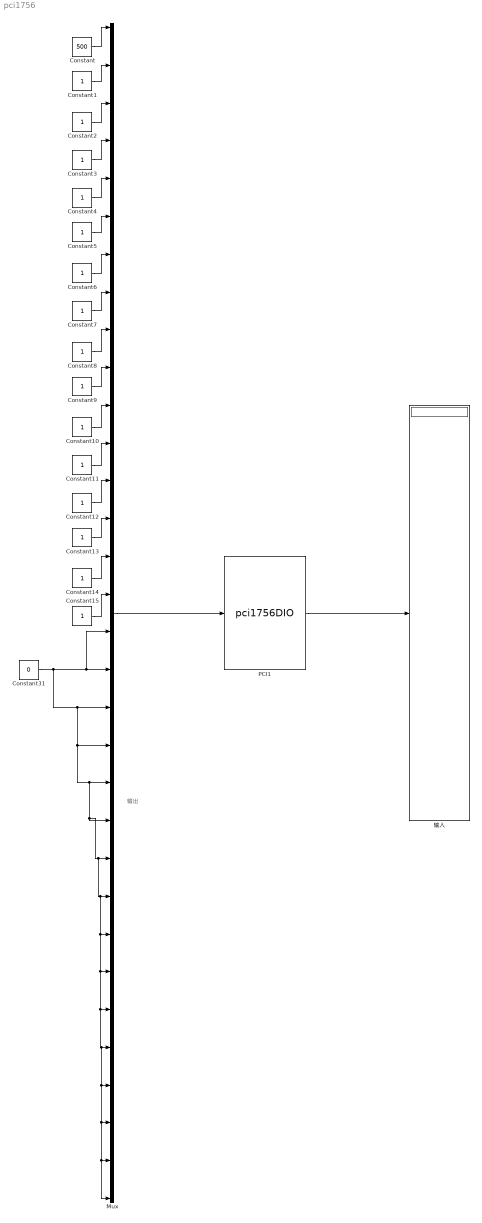
/*
 * pci1756.c
 *
 * Code generation for model "pci1756".
 *
 * Model version              : 1.7
 * Simulink Coder version : 8.11 (R2016b) 25-Aug-2016
 * C source code generated on : Sun Jul 11 21:35:38 2021
 *
 * Target selection: slrt.tlc
 * Note: GRT includes extra infrastructure and instrumentation for prototyping
 * Embedded hardware selection: Generic->32-bit x86 compatible
 * Code generation objectives: Unspecified
 * Validation result: Not run
 */

#include "rt_logging_mmi.h"
#include "pci1756_capi.h"
#include "pci1756.h"
#include "pci1756_private.h"

/* Block signals (auto storage) */
B_pci1756_T pci1756_B;

/* Block states (auto storage) */
DW_pci1756_T pci1756_DW;

/* Real-time model */
RT_MODEL_pci1756_T pci1756_M_;
RT_MODEL_pci1756_T *const pci1756_M = &pci1756_M_;

/* Model output function */
static void pci1756_output(void)
{
  /* Constant: '<Root>/Constant' */
  pci1756_B.Constant = pci1756_P.Constant_Value;

  /* Constant: '<Root>/Constant1' */
  pci1756_B.Constant1 = pci1756_P.Constant1_Value;

  /* Constant: '<Root>/Constant2' */
  pci1756_B.Constant2 = pci1756_P.Constant2_Value;

  /* Constant: '<Root>/Constant3' */
  pci1756_B.Constant3 = pci1756_P.Constant3_Value;

  /* Constant: '<Root>/Constant4' */
  pci1756_B.Constant4 = pci1756_P.Constant4_Value;

  /* Constant: '<Root>/Constant5' */
  pci1756_B.Constant5 = pci1756_P.Constant5_Value;

  /* Constant: '<Root>/Constant6' */
  pci1756_B.Constant6 = pci1756_P.Constant6_Value;

  /* Constant: '<Root>/Constant7' */
  pci1756_B.Constant7 = pci1756_P.Constant7_Value;

  /* Constant: '<Root>/Constant8' */
  pci1756_B.Constant8 = pci1756_P.Constant8_Value;

  /* Constant: '<Root>/Constant9' */
  pci1756_B.Constant9 = pci1756_P.Constant9_Value;

  /* Constant: '<Root>/Constant10' */
  pci1756_B.Constant10 = pci1756_P.Constant10_Value;

  /* Constant: '<Root>/Constant11' */
  pci1756_B.Constant11 = pci1756_P.Constant11_Value;

  /* Constant: '<Root>/Constant12' */
  pci1756_B.Constant12 = pci1756_P.Constant12_Value;

  /* Constant: '<Root>/Constant13' */
  pci1756_B.Constant13 = pci1756_P.Constant13_Value;

  /* Constant: '<Root>/Constant14' */
  pci1756_B.Constant14 = pci1756_P.Constant14_Value;

  /* Constant: '<Root>/Constant15' */
  pci1756_B.Constant15 = pci1756_P.Constant15_Value;

  /* Constant: '<Root>/Constant31' */
  pci1756_B.Constant31 = pci1756_P.Constant31_Value;

  /* Level2 S-Function Block: '<Root>/PCI1' (pci1756DIO) */
  {
    SimStruct *rts = pci1756_M->childSfunctions[0];
    sfcnOutputs(rts, 0);
  }
}

/* Model update function */
static void pci1756_update(void)
{
  /* Update absolute time for base rate */
  /* The "clockTick0" counts the number of times the code of this task has
   * been executed. The absolute time is the multiplication of "clockTick0"
   * and "Timing.stepSize0". Size of "clockTick0" ensures timer will not
   * overflow during the application lifespan selected.
   * Timer of this task consists of two 32 bit unsigned integers.
   * The two integers represent the low bits Timing.clockTick0 and the high bits
   * Timing.clockTickH0. When the low bit overflows to 0, the high bits increment.
   */
  if (!(++pci1756_M->Timing.clockTick0)) {
    ++pci1756_M->Timing.clockTickH0;
  }

  pci1756_M->Timing.t[0] = pci1756_M->Timing.clockTick0 *
    pci1756_M->Timing.stepSize0 + pci1756_M->Timing.clockTickH0 *
    pci1756_M->Timing.stepSize0 * 4294967296.0;
}
